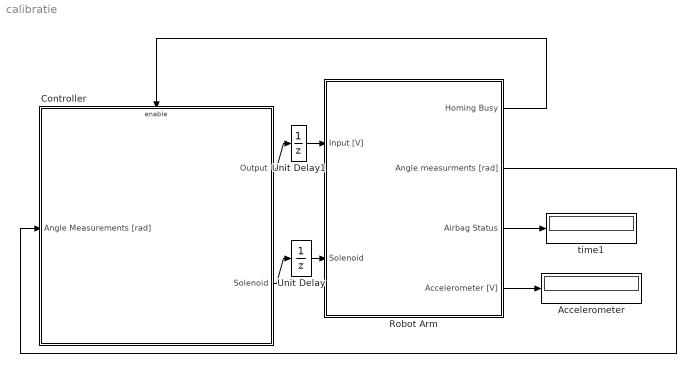
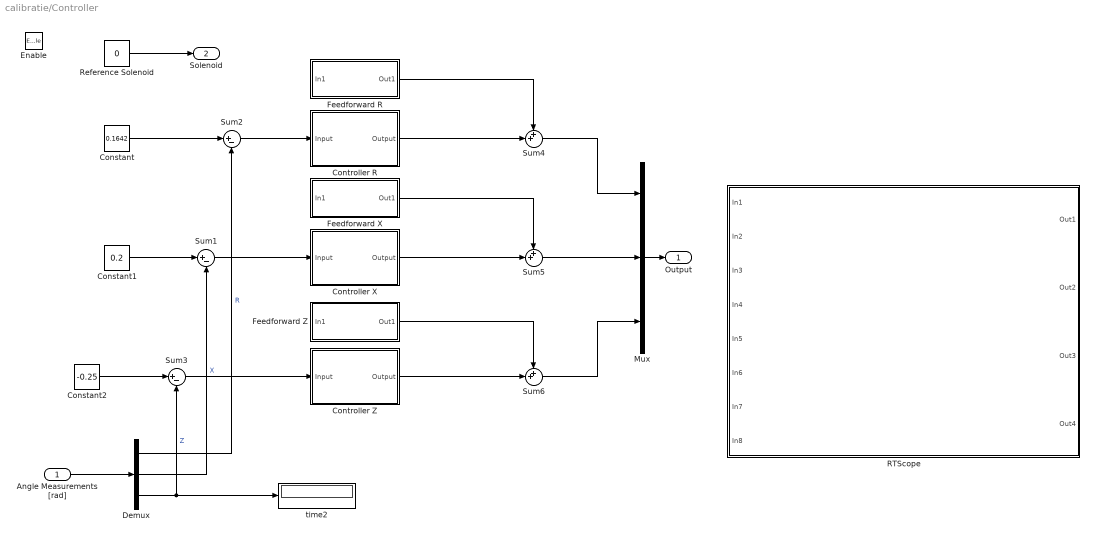
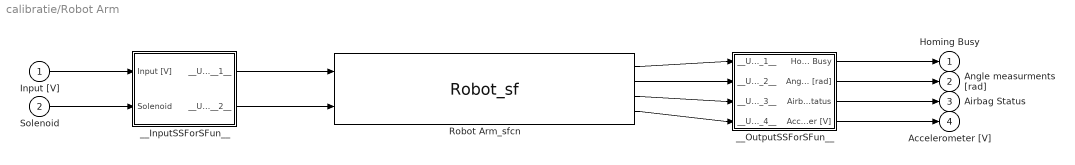
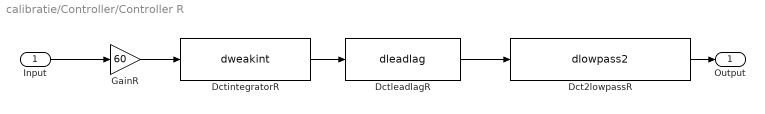
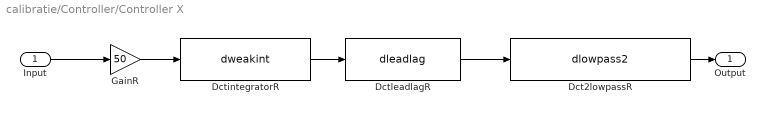
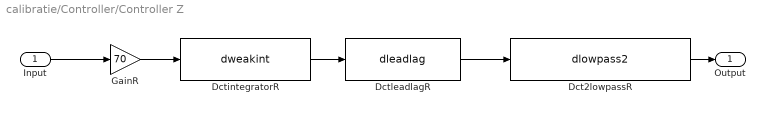
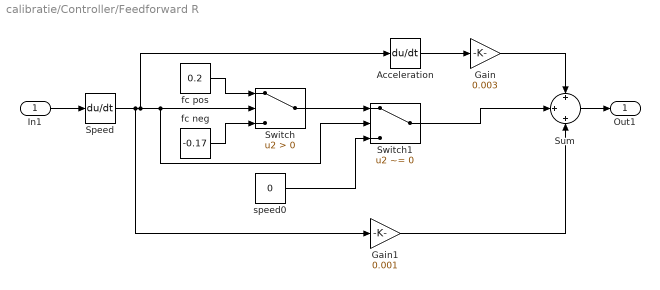
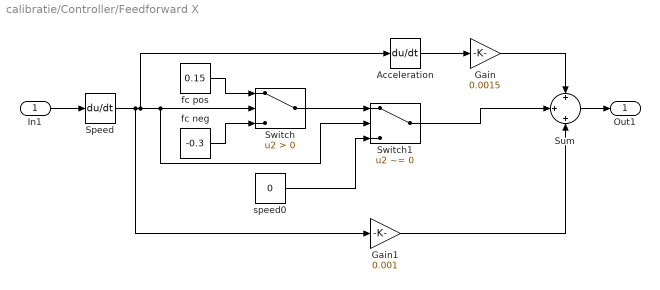
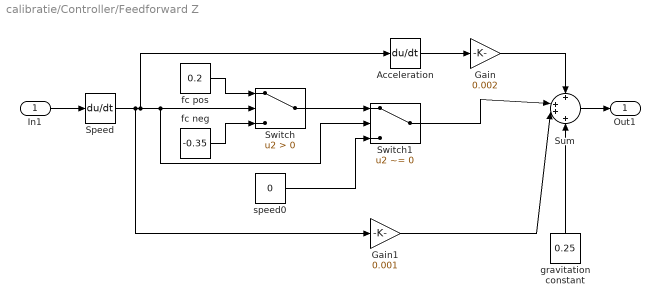
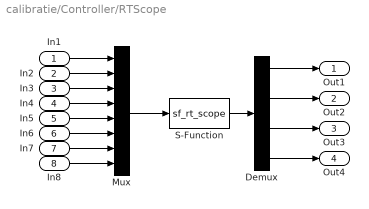
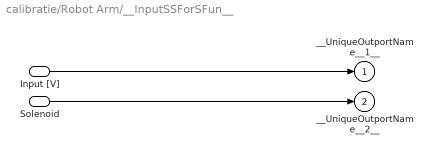
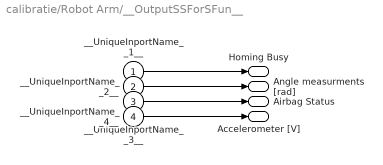
/*
 * calibratie.c
 *
 * Code generation for model "calibratie.mdl".
 *
 * Model version              : 1.948
 * Simulink Coder version : 8.1 (R2011b) 08-Jul-2011
 * C source code generated on : Mon Apr  4 15:30:39 2016
 *
 * Target selection: ectarget.tlc
 * Note: GRT includes extra infrastructure and instrumentation for prototyping
 * Embedded hardware selection: 32-bit Generic
 * Code generation objectives: Unspecified
 * Validation result: Not run
 */
#include "calibratie.h"
#include "calibratie_private.h"
#include "calibratie_dt.h"
#undef S_FUNCTION_NAME
#if !defined(RTW_GENERATED_SFCN_TUNABLE_PRMS_Robot_sf)
#define RTW_GENERATED_SFCN_TUNABLE_PRMS_Robot_sf
#endif

#include "Robot_sf.h"

const real_T calibratie_RGND = 0.0;    /* real_T ground */

/* Block signals (auto storage) */
BlockIO_calibratie calibratie_B;

/* Block states (auto storage) */
D_Work_calibratie calibratie_DWork;

/* Real-time model */
RT_MODEL_calibratie calibratie_M_;
RT_MODEL_calibratie *const calibratie_M = &calibratie_M_;

/* Model output function */
void calibratie_output(int_T tid)
{
  /* local block i/o variables */
  real_T rtb_Switch1;
  real_T rtb_Gain;
  real_T rtb_Gain_n;
  real_T rtb_Sum;

  /* Reset subsysRan breadcrumbs */
  srClearBC(calibratie_DWork.Controller_SubsysRanBC);

  /* UnitDelay: '<Root>/Unit Delay1' */
  /* RTWBLOCK_START_COMMENT */
  calibratie_B.UnitDelay1[0] = calibratie_DWork.UnitDelay1_DSTATE[0];
  calibratie_B.UnitDelay1[1] = calibratie_DWork.UnitDelay1_DSTATE[1];
  calibratie_B.UnitDelay1[2] = calibratie_DWork.UnitDelay1_DSTATE[2];

  /* UnitDelay: '<Root>/Unit Delay' */
  calibratie_B.UnitDelay = calibratie_DWork.UnitDelay_DSTATE;

  /* RTW Generated Level2 S-Function Block: '<S2>/Robot Arm_sfcn' (Robot_sf) */
  {
    SimStruct *rts = calibratie_M->childSfunctions[10];
    sfcnOutputs(rts, 0);
  }

  /* Outputs for Enabled SubSystem: '<Root>/Controller' incorporates:
   *  EnablePort: '<S1>/Enable'
   */
  if (calibratie_B.RobotArm_sfcn_o1 > 0.0) {
    if (!calibratie_DWork.Controller_MODE) {
      calibratie_DWork.Controller_MODE = TRUE;
    }
  } else {
    if (calibratie_DWork.Controller_MODE) {
      calibratie_DWork.Controller_MODE = FALSE;
    }
  }

  if (calibratie_DWork.Controller_MODE) {
    /* Gain: '<S3>/GainR' incorporates:
     *  Constant: '<S1>/Constant'
     *  Sum: '<S1>/Sum2'
     */
    calibratie_B.GainR = (calibratie_P.Constant_Value -
                          calibratie_B.RobotArm_sfcn_o2[0]) *
      calibratie_P.GainR_Gain;

    /* Level2 S-Function Block: '<S3>/DctintegratorR' (dweakint) */
    {
      SimStruct *rts = calibratie_M->childSfunctions[0];
      sfcnOutputs(rts, 1);
    }

    /* Level2 S-Function Block: '<S3>/DctleadlagR' (dleadlag) */
    {
      SimStruct *rts = calibratie_M->childSfunctions[1];
      sfcnOutputs(rts, 1);
    }

    /* Level2 S-Function Block: '<S3>/Dct2lowpassR' (dlowpass2) */
    {
      SimStruct *rts = calibratie_M->childSfunctions[2];
      sfcnOutputs(rts, 1);
    }

    /* Gain: '<S4>/GainR' incorporates:
     *  Constant: '<S1>/Constant1'
     *  Sum: '<S1>/Sum1'
     */
    calibratie_B.GainR_o = (calibratie_P.Constant1_Value -
      calibratie_B.RobotArm_sfcn_o2[1]) * calibratie_P.GainR_Gain_m;

    /* Level2 S-Function Block: '<S4>/DctintegratorR' (dweakint) */
    {
      SimStruct *rts = calibratie_M->childSfunctions[3];
      sfcnOutputs(rts, 1);
    }

    /* Level2 S-Function Block: '<S4>/DctleadlagR' (dleadlag) */
    {
      SimStruct *rts = calibratie_M->childSfunctions[4];
      sfcnOutputs(rts, 1);
    }

    /* Level2 S-Function Block: '<S4>/Dct2lowpassR' (dlowpass2) */
    {
      SimStruct *rts = calibratie_M->childSfunctions[5];
      sfcnOutputs(rts, 1);
    }

    /* Gain: '<S5>/GainR' incorporates:
     *  Constant: '<S1>/Constant2'
     *  Sum: '<S1>/Sum3'
     */
    calibratie_B.GainR_p = (calibratie_P.Constant2_Value -
      calibratie_B.RobotArm_sfcn_o2[2]) * calibratie_P.GainR_Gain_j;

    /* Level2 S-Function Block: '<S5>/DctintegratorR' (dweakint) */
    {
      SimStruct *rts = calibratie_M->childSfunctions[6];
      sfcnOutputs(rts, 1);
    }

    /* Level2 S-Function Block: '<S5>/DctleadlagR' (dleadlag) */
    {
      SimStruct *rts = calibratie_M->childSfunctions[7];
      sfcnOutputs(rts, 1);
    }

    /* Level2 S-Function Block: '<S5>/Dct2lowpassR' (dlowpass2) */
    {
      SimStruct *rts = calibratie_M->childSfunctions[8];
      sfcnOutputs(rts, 1);
    }

    /* Derivative: '<S6>/Speed' */
    {
      real_T t = calibratie_M->Timing.t[0];
      real_T timeStampA = calibratie_DWork.Speed_RWORK.TimeStampA;
      real_T timeStampB = calibratie_DWork.Speed_RWORK.TimeStampB;
      real_T *lastU = &calibratie_DWork.Speed_RWORK.LastUAtTimeA;
      if (timeStampA >= t && timeStampB >= t) {
        calibratie_B.Speed = 0.0;
      } else {
        real_T deltaT;
        real_T lastTime = timeStampA;
        if (timeStampA < timeStampB) {
          if (timeStampB < t) {
            lastTime = timeStampB;
            lastU = &calibratie_DWork.Speed_RWORK.LastUAtTimeB;
          }
        } else if (timeStampA >= t) {
          lastTime = timeStampB;
          lastU = &calibratie_DWork.Speed_RWORK.LastUAtTimeB;
        }

        deltaT = t - lastTime;
        calibratie_B.Speed = (0.0 - *lastU++) / deltaT;
      }
    }

    /* Derivative: '<S6>/Acceleration' */
    {
      real_T t = calibratie_M->Timing.t[0];
      real_T timeStampA = calibratie_DWork.Acceleration_RWORK.TimeStampA;
      real_T timeStampB = calibratie_DWork.Acceleration_RWORK.TimeStampB;
      real_T *lastU = &calibratie_DWork.Acceleration_RWORK.LastUAtTimeA;
      if (timeStampA >= t && timeStampB >= t) {
        rtb_Switch1 = 0.0;
      } else {
        real_T deltaT;
        real_T lastTime = timeStampA;
        if (timeStampA < timeStampB) {
          if (timeStampB < t) {
            lastTime = timeStampB;
            lastU = &calibratie_DWork.Acceleration_RWORK.LastUAtTimeB;
          }
        } else if (timeStampA >= t) {
          lastTime = timeStampB;
          lastU = &calibratie_DWork.Acceleration_RWORK.LastUAtTimeB;
        }

        deltaT = t - lastTime;
        rtb_Switch1 = (calibratie_B.Speed - *lastU++) / deltaT;
      }
    }

    /* Gain: '<S6>/Gain' */
    rtb_Gain = calibratie_P.Gain_Gain * rtb_Switch1;

    /* Switch: '<S6>/Switch1' incorporates:
     *  Constant: '<S6>/speed0'
     */
    if (calibratie_B.Speed != 0.0) {
      /* Switch: '<S6>/Switch' incorporates:
       *  Constant: '<S6>/fc neg'
       *  Constant: '<S6>/fc pos'
       */
      if (calibratie_B.Speed > calibratie_P.Switch_Threshold) {
        rtb_Switch1 = calibratie_P.fcpos_Value;
      } else {
        rtb_Switch1 = calibratie_P.fcneg_Value;
      }

      /* End of Switch: '<S6>/Switch' */
    } else {
      rtb_Switch1 = calibratie_P.speed0_Value;
    }

    /* End of Switch: '<S6>/Switch1' */

    /* Sum: '<S6>/Sum' incorporates:
     *  Gain: '<S6>/Gain1'
     */
    rtb_Sum = (rtb_Gain + rtb_Switch1) + calibratie_P.Gain1_Gain *
      calibratie_B.Speed;

    /* Derivative: '<S7>/Speed' */
    {
      real_T t = calibratie_M->Timing.t[0];
      real_T timeStampA = calibratie_DWork.Speed_RWORK_o.TimeStampA;
      real_T timeStampB = calibratie_DWork.Speed_RWORK_o.TimeStampB;
      real_T *lastU = &calibratie_DWork.Speed_RWORK_o.LastUAtTimeA;
      if (timeStampA >= t && timeStampB >= t) {
        calibratie_B.Speed_e = 0.0;
      } else {
        real_T deltaT;
        real_T lastTime = timeStampA;
        if (timeStampA < timeStampB) {
          if (timeStampB < t) {
            lastTime = timeStampB;
            lastU = &calibratie_DWork.Speed_RWORK_o.LastUAtTimeB;
          }
        } else if (timeStampA >= t) {
          lastTime = timeStampB;
          lastU = &calibratie_DWork.Speed_RWORK_o.LastUAtTimeB;
        }

        deltaT = t - lastTime;
        calibratie_B.Speed_e = (0.0 - *lastU++) / deltaT;
      }
    }

    /* Derivative: '<S7>/Acceleration' */
    {
      real_T t = calibratie_M->Timing.t[0];
      real_T timeStampA = calibratie_DWork.Acceleration_RWORK_h.TimeStampA;
      real_T timeStampB = calibratie_DWork.Acceleration_RWORK_h.TimeStampB;
      real_T *lastU = &calibratie_DWork.Acceleration_RWORK_h.LastUAtTimeA;
      if (timeStampA >= t && timeStampB >= t) {
        rtb_Switch1 = 0.0;
      } else {
        real_T deltaT;
        real_T lastTime = timeStampA;
        if (timeStampA < timeStampB) {
          if (timeStampB < t) {
            lastTime = timeStampB;
            lastU = &calibratie_DWork.Acceleration_RWORK_h.LastUAtTimeB;
          }
        } else if (timeStampA >= t) {
          lastTime = timeStampB;
          lastU = &calibratie_DWork.Acceleration_RWORK_h.LastUAtTimeB;
        }

        deltaT = t - lastTime;
        rtb_Switch1 = (calibratie_B.Speed_e - *lastU++) / deltaT;
      }
    }

    /* Gain: '<S7>/Gain' */
    rtb_Gain = calibratie_P.Gain_Gain_l * rtb_Switch1;

    /* Switch: '<S7>/Switch1' incorporates:
     *  Constant: '<S7>/speed0'
     */
    if (calibratie_B.Speed_e != 0.0) {
      /* Switch: '<S7>/Switch' incorporates:
       *  Constant: '<S7>/fc neg'
       *  Constant: '<S7>/fc pos'
       */
      if (calibratie_B.Speed_e > calibratie_P.Switch_Threshold_b) {
        rtb_Switch1 = calibratie_P.fcpos_Value_k;
      } else {
        rtb_Switch1 = calibratie_P.fcneg_Value_e;
      }

      /* End of Switch: '<S7>/Switch' */
    } else {
      rtb_Switch1 = calibratie_P.speed0_Value_b;
    }

    /* End of Switch: '<S7>/Switch1' */

    /* Sum: '<S7>/Sum' incorporates:
     *  Gain: '<S7>/Gain1'
     */
    rtb_Gain = (rtb_Gain + rtb_Switch1) + calibratie_P.Gain1_Gain_l *
      calibratie_B.Speed_e;

    /* Derivative: '<S8>/Speed' */
    {
      real_T t = calibratie_M->Timing.t[0];
      real_T timeStampA = calibratie_DWork.Speed_RWORK_a.TimeStampA;
      real_T timeStampB = calibratie_DWork.Speed_RWORK_a.TimeStampB;
      real_T *lastU = &calibratie_DWork.Speed_RWORK_a.LastUAtTimeA;
      if (timeStampA >= t && timeStampB >= t) {
        calibratie_B.Speed_a = 0.0;
      } else {
        real_T deltaT;
        real_T lastTime = timeStampA;
        if (timeStampA < timeStampB) {
          if (timeStampB < t) {
            lastTime = timeStampB;
            lastU = &calibratie_DWork.Speed_RWORK_a.LastUAtTimeB;
          }
        } else if (timeStampA >= t) {
          lastTime = timeStampB;
          lastU = &calibratie_DWork.Speed_RWORK_a.LastUAtTimeB;
        }

        deltaT = t - lastTime;
        calibratie_B.Speed_a = (0.0 - *lastU++) / deltaT;
      }
    }

    /* Derivative: '<S8>/Acceleration' */
    {
      real_T t = calibratie_M->Timing.t[0];
      real_T timeStampA = calibratie_DWork.Acceleration_RWORK_a.TimeStampA;
      real_T timeStampB = calibratie_DWork.Acceleration_RWORK_a.TimeStampB;
      real_T *lastU = &calibratie_DWork.Acceleration_RWORK_a.LastUAtTimeA;
      if (timeStampA >= t && timeStampB >= t) {
        rtb_Switch1 = 0.0;
      } else {
        real_T deltaT;
        real_T lastTime = timeStampA;
        if (timeStampA < timeStampB) {
          if (timeStampB < t) {
            lastTime = timeStampB;
            lastU = &calibratie_DWork.Acceleration_RWORK_a.LastUAtTimeB;
          }
        } else if (timeStampA >= t) {
          lastTime = timeStampB;
          lastU = &calibratie_DWork.Acceleration_RWORK_a.LastUAtTimeB;
        }

        deltaT = t - lastTime;
        rtb_Switch1 = (calibratie_B.Speed_a - *lastU++) / deltaT;
      }
    }

    /* Gain: '<S8>/Gain' */
    rtb_Gain_n = calibratie_P.Gain_Gain_j * rtb_Switch1;

    /* Switch: '<S8>/Switch1' incorporates:
     *  Constant: '<S8>/speed0'
     */
    if (calibratie_B.Speed_a != 0.0) {
      /* Switch: '<S8>/Switch' incorporates:
       *  Constant: '<S8>/fc neg'
       *  Constant: '<S8>/fc pos'
       */
      if (calibratie_B.Speed_a > calibratie_P.Switch_Threshold_f) {
        rtb_Switch1 = calibratie_P.fcpos_Value_e;
      } else {
        rtb_Switch1 = calibratie_P.fcneg_Value_g;
      }

      /* End of Switch: '<S8>/Switch' */
    } else {
      rtb_Switch1 = calibratie_P.speed0_Value_n;
    }

    /* End of Switch: '<S8>/Switch1' */

    /* Sum: '<S1>/Sum4' */
    calibratie_B.Sum4 = rtb_Sum + calibratie_B.Dct2lowpassR;

    /* Sum: '<S1>/Sum5' */
    calibratie_B.Sum5 = rtb_Gain + calibratie_B.Dct2lowpassR_g;

    /* Sum: '<S1>/Sum6' incorporates:
     *  Constant: '<S8>/gravitation constant'
     *  Gain: '<S8>/Gain1'
     *  Sum: '<S8>/Sum'
     */
    calibratie_B.Sum6 = (((rtb_Gain_n + rtb_Switch1) + calibratie_P.Gain1_Gain_j
                          * calibratie_B.Speed_a) +
                         calibratie_P.gravitationconstant_Value) +
      calibratie_B.Dct2lowpassR_d;

    /* Constant: '<S1>/Reference Solenoid' */
    calibratie_B.ReferenceSolenoid = calibratie_P.ReferenceSolenoid_Value;

    /* Level2 S-Function Block: '<S9>/S-Function' (sf_rt_scope) */
    {
      SimStruct *rts = calibratie_M->childSfunctions[9];
      sfcnOutputs(rts, 0);
    }

    srUpdateBC(calibratie_DWork.Controller_SubsysRanBC);
  }

  /* End of Outputs for SubSystem: '<Root>/Controller' */

  /* tid is required for a uniform function interface.
   * Argument tid is not used in the function. */
  UNUSED_PARAMETER(tid);
}

/* Model update function */
void calibratie_update(int_T tid)
{
  /* Update for UnitDelay: '<Root>/Unit Delay1' */
  calibratie_DWork.UnitDelay1_DSTATE[0] = calibratie_B.Sum4;
  calibratie_DWork.UnitDelay1_DSTATE[1] = calibratie_B.Sum5;
  calibratie_DWork.UnitDelay1_DSTATE[2] = calibratie_B.Sum6;

  /* Update for UnitDelay: '<Root>/Unit Delay' */
  calibratie_DWork.UnitDelay_DSTATE = calibratie_B.ReferenceSolenoid;

  /* RTW Generated Level2 S-Function Block: '<S2>/Robot Arm_sfcn' (Robot_sf) */
  {
    SimStruct *rts = calibratie_M->childSfunctions[10];
    sfcnUpdate(rts, 0);
    if (ssGetErrorStatus(rts) != (NULL))
      return;
  }

  /* Update for Enabled SubSystem: '<Root>/Controller' incorporates:
   *  Update for EnablePort: '<S1>/Enable'
   */
  if (calibratie_DWork.Controller_MODE) {
    /* Update for Derivative: '<S6>/Speed' */
    {
      real_T timeStampA = calibratie_DWork.Speed_RWORK.TimeStampA;
      real_T timeStampB = calibratie_DWork.Speed_RWORK.TimeStampB;
      real_T* lastTime = &calibratie_DWork.Speed_RWORK.TimeStampA;
      real_T* lastU = &calibratie_DWork.Speed_RWORK.LastUAtTimeA;
      if (timeStampA != rtInf) {
        if (timeStampB == rtInf) {
          lastTime = &calibratie_DWork.Speed_RWORK.TimeStampB;
          lastU = &calibratie_DWork.Speed_RWORK.LastUAtTimeB;
        } else if (timeStampA >= timeStampB) {
          lastTime = &calibratie_DWork.Speed_RWORK.TimeStampB;
          lastU = &calibratie_DWork.Speed_RWORK.LastUAtTimeB;
        }
      }

      *lastTime = calibratie_M->Timing.t[0];
      *lastU++ = 0.0;
    }

    /* Update for Derivative: '<S6>/Acceleration' */
    {
      real_T timeStampA = calibratie_DWork.Acceleration_RWORK.TimeStampA;
      real_T timeStampB = calibratie_DWork.Acceleration_RWORK.TimeStampB;
      real_T* lastTime = &calibratie_DWork.Acceleration_RWORK.TimeStampA;
      real_T* lastU = &calibratie_DWork.Acceleration_RWORK.LastUAtTimeA;
      if (timeStampA != rtInf) {
        if (timeStampB == rtInf) {
          lastTime = &calibratie_DWork.Acceleration_RWORK.TimeStampB;
          lastU = &calibratie_DWork.Acceleration_RWORK.LastUAtTimeB;
        } else if (timeStampA >= timeStampB) {
          lastTime = &calibratie_DWork.Acceleration_RWORK.TimeStampB;
          lastU = &calibratie_DWork.Acceleration_RWORK.LastUAtTimeB;
        }
      }

      *lastTime = calibratie_M->Timing.t[0];
      *lastU++ = calibratie_B.Speed;
    }

    /* Update for Derivative: '<S7>/Speed' */
    {
      real_T timeStampA = calibratie_DWork.Speed_RWORK_o.TimeStampA;
      real_T timeStampB = calibratie_DWork.Speed_RWORK_o.TimeStampB;
      real_T* lastTime = &calibratie_DWork.Speed_RWORK_o.TimeStampA;
      real_T* lastU = &calibratie_DWork.Speed_RWORK_o.LastUAtTimeA;
      if (timeStampA != rtInf) {
        if (timeStampB == rtInf) {
          lastTime = &calibratie_DWork.Speed_RWORK_o.TimeStampB;
          lastU = &calibratie_DWork.Speed_RWORK_o.LastUAtTimeB;
        } else if (timeStampA >= timeStampB) {
          lastTime = &calibratie_DWork.Speed_RWORK_o.TimeStampB;
          lastU = &calibratie_DWork.Speed_RWORK_o.LastUAtTimeB;
        }
      }

      *lastTime = calibratie_M->Timing.t[0];
      *lastU++ = 0.0;
    }

    /* Update for Derivative: '<S7>/Acceleration' */
    {
      real_T timeStampA = calibratie_DWork.Acceleration_RWORK_h.TimeStampA;
      real_T timeStampB = calibratie_DWork.Acceleration_RWORK_h.TimeStampB;
      real_T* lastTime = &calibratie_DWork.Acceleration_RWORK_h.TimeStampA;
      real_T* lastU = &calibratie_DWork.Acceleration_RWORK_h.LastUAtTimeA;
      if (timeStampA != rtInf) {
        if (timeStampB == rtInf) {
          lastTime = &calibratie_DWork.Acceleration_RWORK_h.TimeStampB;
          lastU = &calibratie_DWork.Acceleration_RWORK_h.LastUAtTimeB;
        } else if (timeStampA >= timeStampB) {
          lastTime = &calibratie_DWork.Acceleration_RWORK_h.TimeStampB;
          lastU = &calibratie_DWork.Acceleration_RWORK_h.LastUAtTimeB;
        }
      }

      *lastTime = calibratie_M->Timing.t[0];
      *lastU++ = calibratie_B.Speed_e;
    }

    /* Update for Derivative: '<S8>/Speed' */
    {
      real_T timeStampA = calibratie_DWork.Speed_RWORK_a.TimeStampA;
      real_T timeStampB = calibratie_DWork.Speed_RWORK_a.TimeStampB;
      real_T* lastTime = &calibratie_DWork.Speed_RWORK_a.TimeStampA;
      real_T* lastU = &calibratie_DWork.Speed_RWORK_a.LastUAtTimeA;
      if (timeStampA != rtInf) {
        if (timeStampB == rtInf) {
          lastTime = &calibratie_DWork.Speed_RWORK_a.TimeStampB;
          lastU = &calibratie_DWork.Speed_RWORK_a.LastUAtTimeB;
        } else if (timeStampA >= timeStampB) {
          lastTime = &calibratie_DWork.Speed_RWORK_a.TimeStampB;
          lastU = &calibratie_DWork.Speed_RWORK_a.LastUAtTimeB;
        }
      }

      *lastTime = calibratie_M->Timing.t[0];
      *lastU++ = 0.0;
    }

    /* Update for Derivative: '<S8>/Acceleration' */
    {
      real_T timeStampA = calibratie_DWork.Acceleration_RWORK_a.TimeStampA;
      real_T timeStampB = calibratie_DWork.Acceleration_RWORK_a.TimeStampB;
      real_T* lastTime = &calibratie_DWork.Acceleration_RWORK_a.TimeStampA;
      real_T* lastU = &calibratie_DWork.Acceleration_RWORK_a.LastUAtTimeA;
      if (timeStampA != rtInf) {
        if (timeStampB == rtInf) {
          lastTime = &calibratie_DWork.Acceleration_RWORK_a.TimeStampB;
          lastU = &calibratie_DWork.Acceleration_RWORK_a.LastUAtTimeB;
        } else if (timeStampA >= timeStampB) {
          lastTime = &calibratie_DWork.Acceleration_RWORK_a.TimeStampB;
          lastU = &calibratie_DWork.Acceleration_RWORK_a.LastUAtTimeB;
        }
      }

      *lastTime = calibratie_M->Timing.t[0];
      *lastU++ = calibratie_B.Speed_a;
    }
  }

  /* End of Update for SubSystem: '<Root>/Controller' */

  /* Update absolute time for base rate */
  /* The "clockTick0" counts the number of times the code of this task has
   * been executed. The absolute time is the multiplication of "clockTick0"
   * and "Timing.stepSize0". Size of "clockTick0" ensures timer will not
   * overflow during the application lifespan selected.
   * Timer of this task consists of two 32 bit unsigned integers.
   * The two integers represent the low bits Timing.clockTick0 and the high bits
   * Timing.clockTickH0. When the low bit overflows to 0, the high bits increment.
   */
  if (!(++calibratie_M->Timing.clockTick0)) {
    ++calibratie_M->Timing.clockTickH0;
  }

  calibratie_M->Timing.t[0] = calibratie_M->Timing.clockTick0 *
    calibratie_M->Timing.stepSize0 + calibratie_M->Timing.clockTickH0 *
    calibratie_M->Timing.stepSize0 * 4294967296.0;

  {
    /* Update absolute timer for sample time: [0.000244140625s, 0.0s] */
    /* The "clockTick1" counts the number of times the code of this task has
     * been executed. The absolute time is the multiplication of "clockTick1"
     * and "Timing.stepSize1". Size of "clockTick1" ensures timer will not
     * overflow during the application lifespan selected.
     * Timer of this task consists of two 32 bit unsigned integers.
     * The two integers represent the low bits Timing.clockTick1 and the high bits
     * Timing.clockTickH1. When the low bit overflows to 0, the high bits increment.
     */
    if (!(++calibratie_M->Timing.clockTick1)) {
      ++calibratie_M->Timing.clockTickH1;
    }

    calibratie_M->Timing.t[1] = calibratie_M->Timing.clockTick1 *
      calibratie_M->Timing.stepSize1 + calibratie_M->Timing.clockTickH1 *
      calibratie_M->Timing.stepSize1 * 4294967296.0;
  }

  /* tid is required for a uniform function interface.
   * Argument tid is not used in the function. */
  UNUSED_PARAMETER(tid);
}
